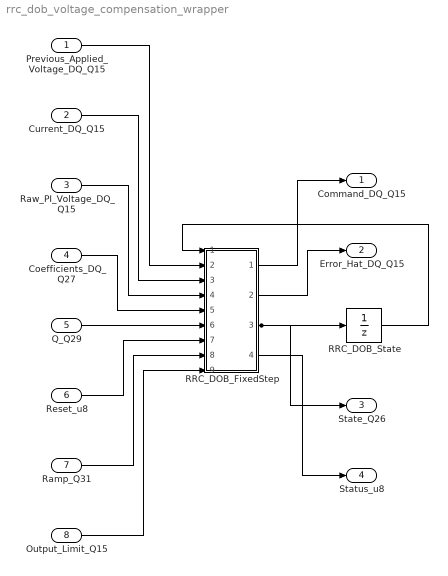
== matlab function rrc_dob_voltage_compensation_wrapper/RRC_DOB_FixedStep ==
function [commandDQ_Q15, eHatDQ_Q15, stateNext, status] = RRC_DOB_FixedStep(state, previousAppliedVoltageDQ_Q15, currentDQ_Q15, rawPiVoltageDQ_Q15, coefficientsDQ_Q27, q_Q29, reset, ramp_Q31, outputLimit_Q15)
%#codegen
[commandDQ_Q15, eHatDQ_Q15, stateNext, status] = rrcDobFixedPointStep(state, previousAppliedVoltageDQ_Q15, currentDQ_Q15, rawPiVoltageDQ_Q15, coefficientsDQ_Q27, q_Q29, reset, ramp_Q31, outputLimit_Q15);
end

/*
 * Academic License - for use in teaching, academic research, and meeting
 * course requirements at degree granting institutions only.  Not for
 * government, commercial, or other organizational use.
 *
 * File: rrc_dob_voltage_compensation_wrapper.c
 *
 * Code generated for Simulink model 'rrc_dob_voltage_compensation_wrapper'.
 *
 * Model version                  : 1.2
 * Simulink Coder version         : 26.1 (R2026a) 20-Nov-2025
 * C/C++ source code generated on : Thu Aug 27 22:31:27 2026
 *
 * Target selection: ert.tlc
 * Embedded hardware selection: ARM Compatible->ARM Cortex
 * Code generation objectives: Unspecified
 * Validation result: Not run
 */

#include "rrc_dob_voltage_compensation_wrapper.h"
#include "rtwtypes.h"
#include "multiword_types.h"
#include "rrc_dob_voltage_compensation_wrapper_private.h"

/* Block states (default storage) */
DW_rrc_dob_voltage_compensati_T rrc_dob_voltage_compensation_DW;

/* External inputs (root inport signals with default storage) */
ExtU_rrc_dob_voltage_compensa_T rrc_dob_voltage_compensation__U;

/* External outputs (root outports fed by signals with default storage) */
ExtY_rrc_dob_voltage_compensa_T rrc_dob_voltage_compensation__Y;

/* Real-time model */
static RT_MODEL_rrc_dob_voltage_comp_T rrc_dob_voltage_compensation_M_;
RT_MODEL_rrc_dob_voltage_comp_T *const rrc_dob_voltage_compensation_M =
  &rrc_dob_voltage_compensation_M_;

/* Forward declaration for local functions */
static void rrc_dob_vo_localScaleStateValue(int32_T b_value, const int64m_T
  ratio_Q30, int32_T *scaledValue, boolean_T *valid);
static void rrc_dob_voltage_localAccumulate(const int64m_T accumulator, const
  int64m_T term, int64m_T *result, boolean_T *valid);
static void rrc_dob_voltage_c_localAxisStep(const int32_T state[3], int16_T
  previousAppliedVoltage_Q15, int16_T current_Q15, const int32_T
  coefficients_Q27[19], int16_T *eHat_Q15, int32_T stateNext[3], boolean_T
  *valid);
boolean_T sMultiWordLt(const uint32_T u1[], const uint32_T u2[], int32_T n)
{
  return sMultiWordCmp(u1, u2, n) < 0;
}

int32_T sMultiWordCmp(const uint32_T u1[], const uint32_T u2[], int32_T n)
{
  int32_T y;
  uint32_T su1;
  uint32_T su2;
  su1 = u1[n - 1] & 2147483648U;
  su2 = u2[n - 1] & 2147483648U;
  if (su1 != su2) {
    y = su1 != 0U ? -1 : 1;
  } else {
    int32_T i;
    y = 0;
    i = n;
    while ((y == 0) && (i > 0)) {
      i--;
      su1 = u1[i];
      su2 = u2[i];
      if (su1 != su2) {
        y = su1 > su2 ? 1 : -1;
      }
    }
  }

  return y;
}

void sMultiWord2MultiWord(const uint32_T u1[], int32_T n1, uint32_T y[], int32_T
  n)
{
  int32_T i;
  int32_T nm;
  nm = n1 < n ? n1 : n;
  for (i = 0; i < nm; i++) {
    y[i] = u1[i];
  }

  if (n > n1) {
    uint32_T u1i;
    u1i = (u1[n1 - 1] & 2147483648U) != 0U ? MAX_uint32_T : 0U;
    for (i = nm; i < n; i++) {
      y[i] = u1i;
    }
  }
}

void sMultiWordShl(const uint32_T u1[], int32_T n1, uint32_T n2, uint32_T y[],
                   int32_T n)
{
  int32_T i;
  int32_T nb;
  int32_T nc;
  uint32_T u1i;
  uint32_T ys;
  nb = (int32_T)(n2 >> 5);
  ys = (u1[n1 - 1] & 2147483648U) != 0U ? MAX_uint32_T : 0U;
  nc = nb > n ? n : nb;
  u1i = 0U;
  for (i = 0; i < nc; i++) {
    y[i] = 0U;
  }

  if (nb < n) {
    uint32_T nl;
    nl = n2 - ((uint32_T)nb << 5);
    nb += n1;
    if (nb > n) {
      nb = n;
    }

    nb -= i;
    if (nl > 0U) {
      for (nc = 0; nc < nb; nc++) {
        uint32_T yi;
        yi = u1i >> (32U - nl);
        u1i = u1[nc];
        y[i] = u1i << nl | yi;
        i++;
      }

      if (i < n) {
        y[i] = u1i >> (32U - nl) | ys << nl;
        i++;
      }
    } else {
      for (nc = 0; nc < nb; nc++) {
        y[i] = u1[nc];
        i++;
      }
    }
  }

  while (i < n) {
    y[i] = ys;
    i++;
  }
}

void sLong2MultiWord(int32_T u, uint32_T y[], int32_T n)
{
  int32_T i;
  uint32_T yi;
  y[0] = (uint32_T)u;
  yi = u < 0 ? MAX_uint32_T : 0U;
  for (i = 1; i < n; i++) {
    y[i] = yi;
  }
}

boolean_T sMultiWordGt(const uint32_T u1[], const uint32_T u2[], int32_T n)
{
  return sMultiWordCmp(u1, u2, n) > 0;
}

void sMultiWord2sMultiWordSat(const uint32_T u1[], int32_T n1, uint32_T y[],
  int32_T n)
{
  int32_T i;
  int32_T nm1;
  uint32_T ys;
  boolean_T doSaturation = false;
  nm1 = n - 1;
  ys = (u1[n1 - 1] & 2147483648U) != 0U ? MAX_uint32_T : 0U;
  if (n1 > n) {
    doSaturation = (((u1[n1 - 1] ^ u1[n - 1]) & 2147483648U) != 0U);
    i = n1 - 1;
    while (!doSaturation && (i >= n)) {
      doSaturation = (u1[i] != ys);
      i--;
    }
  }

  if (doSaturation) {
    ys = ~ys;
    for (i = 0; i < nm1; i++) {
      y[i] = ys;
    }

    y[i] = ys ^ 2147483648U;
  } else {
    nm1 = n1 < n ? n1 : n;
    for (i = 0; i < nm1; i++) {
      y[i] = u1[i];
    }

    while (i < n) {
      y[i] = ys;
      i++;
    }
  }
}

void sMultiWordDivFloor(const uint32_T u1[], int32_T n1, const uint32_T u2[],
  int32_T n2, uint32_T y1[], int32_T m1, uint32_T y2[], int32_T m2, uint32_T t1[],
  int32_T l1, uint32_T t2[], int32_T l2)
{
  boolean_T denNeg;
  boolean_T numNeg;
  numNeg = ((u1[n1 - 1] & 2147483648U) != 0U);
  denNeg = ((u2[n2 - 1] & 2147483648U) != 0U);
  if (numNeg) {
    MultiWordNeg(u1, t1, n1);
  } else {
    sMultiWord2MultiWord(u1, n1, t1, l1);
  }

  if (denNeg) {
    MultiWordNeg(u2, t2, n2);
  } else {
    sMultiWord2MultiWord(u2, n2, t2, l2);
  }

  if (uMultiWordDiv(t1, l1, t2, l2, y1, m1, y2, m2) < 0) {
    if (numNeg) {
      MultiWordSetSignedMin(y1, m1);
    } else {
      MultiWordSetSignedMax(y1, m1);
    }
  } else if ((boolean_T)(numNeg ^ denNeg)) {
    if (MultiWord2Bool(y2, m2)) {
      uMultiWordInc(y1, m1);
    }

    MultiWordNeg(y1, y1, m1);
  }
}

void MultiWordNeg(const uint32_T u1[], uint32_T y[], int32_T n)
{
  int32_T i;
  uint32_T carry = 1U;
  for (i = 0; i < n; i++) {
    uint32_T yi;
    yi = ~u1[i] + carry;
    y[i] = yi;
    carry = (uint32_T)(yi < carry);
  }
}

void MultiWordSetSignedMin(uint32_T y[], int32_T n)
{
  int32_T i;
  int32_T n1;
  n1 = n - 1;
  for (i = 0; i < n1; i++) {
    y[i] = 0U;
  }

  y[n - 1] = 2147483648U;
}

void MultiWordSetSignedMax(uint32_T y[], int32_T n)
{
  int32_T i;
  int32_T n1;
  n1 = n - 1;
  for (i = 0; i < n1; i++) {
    y[i] = MAX_uint32_T;
  }

  y[n - 1] = 2147483647U;
}

void uMultiWordInc(uint32_T y[], int32_T n)
{
  int32_T i;
  uint32_T carry = 1U;
  for (i = 0; i < n; i++) {
    uint32_T yi;
    yi = y[i] + carry;
    y[i] = yi;
    carry = (uint32_T)(yi < carry);
  }
}

boolean_T MultiWord2Bool(const uint32_T u[], int32_T n)
{
  int32_T i;
  boolean_T y;
  y = false;
  i = 0;
  while ((i < n) && !y) {
    if (u[i] != 0U) {
      y = true;
    }

    i++;
  }

  return y;
}

int32_T uMultiWordDiv(uint32_T a[], int32_T na, uint32_T b[], int32_T nb,
                      uint32_T q[], int32_T nq, uint32_T r[], int32_T nr)
{
  int32_T ka;
  int32_T kr;
  int32_T nzb;
  int32_T tpi;
  int32_T y;
  nzb = nb;
  tpi = nb - 1;
  while ((nzb > 0) && (b[tpi] == 0U)) {
    nzb--;
    tpi--;
  }

  if (nzb > 0) {
    int32_T nza;
    nza = na;
    for (tpi = 0; tpi < nq; tpi++) {
      q[tpi] = 0U;
    }

    tpi = na - 1;
    while ((nza > 0) && (a[tpi] == 0U)) {
      nza--;
      tpi--;
    }

    if ((nza > 0) && (nza >= nzb)) {
      int32_T na1;
      int32_T nb1;
      nb1 = nzb - 1;
      na1 = nza - 1;
      for (kr = 0; kr < nr; kr++) {
        r[kr] = 0U;
      }

      /* Quick return if dividend and divisor fit into single word. */
      if (nza == 1) {
        uint32_T ak;
        uint32_T bk;
        uint32_T nbq;
        ak = a[0];
        bk = b[0];
        nbq = ak / bk;
        q[0] = nbq;
        r[0] = ak - nbq * bk;
        y = 7;
      } else {
        uint32_T kba;
        uint32_T kbb;
        uint32_T t;

        /* Remove leading zeros from both, dividend and divisor. */
        kbb = 1U;
        t = b[nzb - 1] >> 1U;
        while (t != 0U) {
          kbb++;
          t >>= 1U;
        }

        kba = 1U;
        t = a[nza - 1] >> 1U;
        while (t != 0U) {
          kba++;
          t >>= 1U;
        }

        /* Quick return if quotient is zero. */
        if ((nza > nzb) || (kba >= kbb)) {
          uint32_T ak;
          uint32_T bk;
          uint32_T mask;
          uint32_T nba;
          uint32_T nbb;
          uint32_T nbq;
          uint32_T tnb;
          nba = ((uint32_T)(nza - 1) << 5) + kba;
          nbb = ((uint32_T)(nzb - 1) << 5) + kbb;

          /* Normalize b. */
          if (kbb != 32U) {
            bk = b[nzb - 1];
            for (kr = nzb - 1; kr > 0; kr--) {
              t = bk << (32U - kbb);
              bk = b[kr - 1];
              t |= bk >> kbb;
              b[kr] = t;
            }

            b[kr] = bk << (32U - kbb);
            mask = ~((1U << (32U - kbb)) - 1U);
          } else {
            mask = MAX_uint32_T;
          }

          /* Initialize quotient to zero. */
          tnb = 0U;
          y = 0;

          /* Until exit conditions have been met, do */
          do {
            /* Normalize a */
            if (kba != 32U) {
              tnb = (tnb - kba) + 32U;
              ak = a[na1];
              for (ka = na1; ka > 0; ka--) {
                t = ak << (32U - kba);
                ak = a[ka - 1];
                t |= ak >> kba;
                a[ka] = t;
              }

              a[ka] = ak << (32U - kba);
            }

            /* Compare b against the a. */
            ak = a[na1];
            bk = b[nzb - 1];
            if (((nzb - 1 == 0 ? mask : MAX_uint32_T) & ak) == bk) {
              tpi = 0;
              ka = na1;
              kr = nzb - 1;
              while ((tpi == 0) && (kr > 0)) {
                ka--;
                ak = a[ka];
                kr--;
                bk = b[kr];
                if (((kr == 0 ? mask : MAX_uint32_T) & ak) != bk) {
                  tpi = ak > bk ? 1 : -1;
                }
              }
            } else {
              tpi = ak > bk ? 1 : -1;
            }

            /* If the remainder in a is still greater or equal to b, subtract normalized divisor from a. */
            if ((tpi >= 0) || (nba > nbb)) {
              nbq = nba - nbb;

              /* If the remainder and the divisor are equal, set remainder to zero. */
              if (tpi == 0) {
                ka = na1;
                for (kr = nzb - 1; kr > 0; kr--) {
                  a[ka] = 0U;
                  ka--;
                }

                a[ka] -= b[kr];
              } else {
                /* Otherwise, subtract the divisor from the remainder */
                if (tpi < 0) {
                  ak = a[na1];
                  kba = 31U;
                  for (ka = na1; ka > 0; ka--) {
                    t = ak << 1U;
                    ak = a[ka - 1];
                    t |= ak >> 31U;
                    a[ka] = t;
                  }

                  a[ka] = ak << 1U;
                  tnb++;
                  nbq--;
                }

                bk = 0U;
                ka = (na1 - nzb) + 1;
                for (kr = 0; kr < nzb; kr++) {
                  t = a[ka];
                  ak = (t - b[kr]) - bk;
                  bk = bk != 0U ? (uint32_T)(ak >= t) : (uint32_T)(ak > t);
                  a[ka] = ak;
                  ka++;
                }
              }

              /* Update the quotient. */
              tpi = (int32_T)(nbq >> 5);
              q[tpi] |= 1U << (nbq - ((uint32_T)tpi << 5));

              /* Remove leading zeros from the remainder and check whether the exit conditions have been met. */
              tpi = na1;
              while ((nza > 0) && (a[tpi] == 0U)) {
                nza--;
                tpi--;
              }

              if (nza >= nzb) {
                na1 = nza - 1;
                kba = 1U;
                t = a[nza - 1] >> 1U;
                while (t != 0U) {
                  kba++;
                  t >>= 1U;
                }

                nba = (((uint32_T)(nza - 1) << 5) + kba) - tnb;
                if (nba < nbb) {
                  y = 2;
                }
              } else if (nza == 0) {
                y = 1;
              } else {
                na1 = nza - 1;
                y = 4;
              }
            } else {
              y = 3;
            }
          } while (y == 0);

          /* Return the remainder. */
          if (y == 1) {
            r[0] = a[0];
          } else {
            tpi = (int32_T)(tnb >> 5);
            nbq = tnb - ((uint32_T)tpi << 5);
            if (nbq == 0U) {
              ka = tpi;
              for (kr = 0; kr <= nb1; kr++) {
                r[kr] = a[ka];
                ka++;
              }
            } else {
              ak = a[tpi];
              kr = 0;
              for (ka = tpi + 1; ka <= na1; ka++) {
                t = ak >> nbq;
                ak = a[ka];
                t |= ak << (32U - nbq);
                r[kr] = t;
                kr++;
              }

              r[kr] = ak >> nbq;
            }
          }

          /* Restore b. */
          if (kbb != 32U) {
            bk = b[0];
            for (kr = 0; kr < nb1; kr++) {
              t = bk >> (32U - kbb);
              bk = b[kr + 1];
              t |= bk << kbb;
              b[kr] = t;
            }

            b[kr] = bk >> (32U - kbb);
          }
        } else {
          for (kr = 0; kr < nr; kr++) {
            r[kr] = a[kr];
          }

          y = 6;
        }
      }
    } else {
      for (kr = 0; kr < nr; kr++) {
        r[kr] = a[kr];
      }

      y = 5;
    }
  } else {
    y = -1;
  }

  return y;
}

void MultiWordAdd(const uint32_T u1[], const uint32_T u2[], uint32_T y[],
                  int32_T n)
{
  int32_T i;
  uint32_T carry = 0U;
  for (i = 0; i < n; i++) {
    uint32_T u1i;
    uint32_T yi;
    u1i = u1[i];
    yi = (u1i + u2[i]) + carry;
    y[i] = yi;
    carry = carry != 0U ? (uint32_T)(yi <= u1i) : (uint32_T)(yi < u1i);
  }
}

void sMultiWordMul(const uint32_T u1[], int32_T n1, const uint32_T u2[], int32_T
                   n2, uint32_T y[], int32_T n)
{
  int32_T i;
  int32_T j;
  int32_T k;
  uint32_T cb;
  uint32_T cb1;
  uint32_T yk;
  boolean_T isNegative1;
  boolean_T isNegative2;
  isNegative1 = ((u1[n1 - 1] & 2147483648U) != 0U);
  isNegative2 = ((u2[n2 - 1] & 2147483648U) != 0U);
  cb1 = 1U;

  /* Initialize output to zero */
  for (k = 0; k < n; k++) {
    y[k] = 0U;
  }

  for (i = 0; i < n1; i++) {
    int32_T ni;
    uint32_T a0;
    uint32_T a1;
    uint32_T cb2;
    uint32_T u1i;
    cb = 0U;
    u1i = u1[i];
    if (isNegative1) {
      u1i = ~u1i + cb1;
      cb1 = (uint32_T)(u1i < cb1);
    }

    a1 = u1i >> 16U;
    a0 = u1i & 65535U;
    cb2 = 1U;
    ni = n - i;
    ni = n2 <= ni ? n2 : ni;
    k = i;
    for (j = 0; j < ni; j++) {
      uint32_T b1;
      uint32_T w01;
      uint32_T w10;
      u1i = u2[j];
      if (isNegative2) {
        u1i = ~u1i + cb2;
        cb2 = (uint32_T)(u1i < cb2);
      }

      b1 = u1i >> 16U;
      u1i &= 65535U;
      w10 = a1 * u1i;
      w01 = a0 * b1;
      yk = y[k] + cb;
      cb = (uint32_T)(yk < cb);
      u1i *= a0;
      yk += u1i;
      cb += (uint32_T)(yk < u1i);
      u1i = w10 << 16U;
      yk += u1i;
      cb += (uint32_T)(yk < u1i);
      u1i = w01 << 16U;
      yk += u1i;
      cb += (uint32_T)(yk < u1i);
      y[k] = yk;
      cb += w10 >> 16U;
      cb += w01 >> 16U;
      cb += a1 * b1;
      k++;
    }

    if (k < n) {
      y[k] = cb;
    }
  }

  /* Apply sign */
  if (isNegative1 != isNegative2) {
    cb = 1U;
    for (k = 0; k < n; k++) {
      yk = ~y[k] + cb;
      y[k] = yk;
      cb = (uint32_T)(yk < cb);
    }
  }
}

void uLong2MultiWord(uint32_T u, uint32_T y[], int32_T n)
{
  int32_T i;
  y[0] = u;
  for (i = 1; i < n; i++) {
    y[i] = 0U;
  }
}

boolean_T sMultiWordGe(const uint32_T u1[], const uint32_T u2[], int32_T n)
{
  return sMultiWordCmp(u1, u2, n) >= 0;
}

boolean_T sMultiWordEq(const uint32_T u1[], const uint32_T u2[], int32_T n)
{
  return sMultiWordCmp(u1, u2, n) == 0;
}

void sMultiWordShr(const uint32_T u1[], int32_T n1, uint32_T n2, uint32_T y[],
                   int32_T n)
{
  int32_T i;
  int32_T i1;
  int32_T nb;
  uint32_T ys;
  nb = (int32_T)(n2 >> 5);
  i = 0;
  ys = (u1[n1 - 1] & 2147483648U) != 0U ? MAX_uint32_T : 0U;
  if (nb < n1) {
    int32_T nc;
    uint32_T nr;
    nc = n + nb;
    if (nc > n1) {
      nc = n1;
    }

    nr = n2 - ((uint32_T)nb << 5);
    if (nr > 0U) {
      uint32_T u1i;
      uint32_T yi;
      u1i = u1[nb];
      for (i1 = nb + 1; i1 < nc; i1++) {
        yi = u1i >> nr;
        u1i = u1[i1];
        y[i] = u1i << (32U - nr) | yi;
        i++;
      }

      yi = u1i >> nr;
      u1i = nc < n1 ? u1[nc] : ys;
      y[i] = u1i << (32U - nr) | yi;
      i++;
    } else {
      for (i1 = nb; i1 < nc; i1++) {
        y[i] = u1[i1];
        i++;
      }
    }
  }

  while (i < n) {
    y[i] = ys;
    i++;
  }
}

void MultiWordSub(const uint32_T u1[], const uint32_T u2[], uint32_T y[],
                  int32_T n)
{
  int32_T i;
  uint32_T borrow = 0U;
  for (i = 0; i < n; i++) {
    uint32_T u1i;
    uint32_T yi;
    u1i = u1[i];
    yi = (u1i - u2[i]) - borrow;
    y[i] = yi;
    borrow = borrow != 0U ? (uint32_T)(yi >= u1i) : (uint32_T)(yi > u1i);
  }
}

int32_T MultiWord2sLong(const uint32_T u[])
{
  return (int32_T)u[0];
}

boolean_T sMultiWordLe(const uint32_T u1[], const uint32_T u2[], int32_T n)
{
  return sMultiWordCmp(u1, u2, n) <= 0;
}

int32_T sMultiWord2sLongSat(const uint32_T u1[], int32_T n1)
{
  uint32_T y;
  sMultiWord2sMultiWordSat(u1, n1, &y, 1);
  return (int32_T)y;
}

/* Function for MATLAB Function: '<Root>/RRC_DOB_FixedStep' */
static void rrc_dob_vo_localScaleStateValue(int32_T b_value, const int64m_T
  ratio_Q30, int32_T *scaledValue, boolean_T *valid)
{
  int128m_T tmp;
  int64m_T magnitude;
  int64m_T saturatedUnaryMinus;
  int64m_T tmp_0;
  int64m_T tmp_1;
  int64m_T tmp_2;
  int96m_T tmp_3;
  int96m_T tmp_4;
  int96m_T tmp_5;
  boolean_T roundingValid;
  static const int64m_T tmp_6 = { { 0U, 0U }/* chunks */
  };

  static const int64m_T tmp_7 = { { 3758096383U, 2147483647U }/* chunks */
  };

  static const int64m_T tmp_8 = { { 2147483647U, 0U }/* chunks */
  };

  static const int64m_T tmp_9 = { { 2147483648U, MAX_uint32_T }/* chunks */
  };

  static const int64m_T tmp_a = { { 536870912U, 0U }/* chunks */
  };

  static const int64m_T tmp_b = { { 0U, 2147483648U }/* chunks */
  };

  static const int64m_T tmp_c = { { MAX_uint32_T, 2147483647U }/* chunks */
  };

  sLong2MultiWord(b_value, &tmp_0.chunks[0U], 2);
  sMultiWordMul(&tmp_0.chunks[0U], 2, &ratio_Q30.chunks[0U], 2, &tmp.chunks[0U],
                4);
  sMultiWord2sMultiWordSat(&tmp.chunks[0U], 4, &magnitude.chunks[0U], 2);
  roundingValid = true;
  if (sMultiWordGe(&magnitude.chunks[0U], &tmp_6.chunks[0U], 2)) {
    if (sMultiWordGt(&magnitude.chunks[0U], &tmp_7.chunks[0U], 2)) {
      roundingValid = false;
      magnitude = tmp_6;
    } else {
      sMultiWord2MultiWord(&magnitude.chunks[0U], 2, &tmp_4.chunks[0U], 3);
      sMultiWord2MultiWord(&tmp_a.chunks[0U], 2, &tmp_5.chunks[0U], 3);
      MultiWordAdd(&tmp_4.chunks[0U], &tmp_5.chunks[0U], &tmp_3.chunks[0U], 3);
      sMultiWord2sMultiWordSat(&tmp_3.chunks[0U], 3, &tmp_2.chunks[0U], 2);
      sMultiWordShr(&tmp_2.chunks[0U], 2, 30U, &magnitude.chunks[0U], 2);
    }
  } else if (sMultiWordEq(&magnitude.chunks[0U], &tmp_b.chunks[0U], 2)) {
    roundingValid = false;
    magnitude = tmp_6;
  } else {
    if (sMultiWordLe(&magnitude.chunks[0U], &tmp_b.chunks[0U], 2)) {
      saturatedUnaryMinus = tmp_c;
    } else {
      MultiWordNeg(&magnitude.chunks[0U], &saturatedUnaryMinus.chunks[0U], 2);
    }

    magnitude = saturatedUnaryMinus;
    if (sMultiWordGt(&saturatedUnaryMinus.chunks[0U], &tmp_7.chunks[0U], 2)) {
      roundingValid = false;
      magnitude = tmp_6;
    } else {
      sMultiWord2MultiWord(&saturatedUnaryMinus.chunks[0U], 2, &tmp_4.chunks[0U],
                           3);
      sMultiWord2MultiWord(&tmp_a.chunks[0U], 2, &tmp_5.chunks[0U], 3);
      MultiWordAdd(&tmp_4.chunks[0U], &tmp_5.chunks[0U], &tmp_3.chunks[0U], 3);
      sMultiWord2sMultiWordSat(&tmp_3.chunks[0U], 3, &tmp_2.chunks[0U], 2);
      sMultiWordShr(&tmp_2.chunks[0U], 2, 30U, &tmp_1.chunks[0U], 2);
      MultiWordNeg(&tmp_1.chunks[0U], &magnitude.chunks[0U], 2);
    }
  }

  *valid = (roundingValid && sMultiWordLe(&magnitude.chunks[0U], &tmp_8.chunks
             [0U], 2) && sMultiWordGe(&magnitude.chunks[0U], &tmp_9.chunks[0U],
             2));
  if (*valid) {
    *scaledValue = sMultiWord2sLongSat(&magnitude.chunks[0U], 2);
  } else {
    *scaledValue = 0;
  }
}

/* Function for MATLAB Function: '<Root>/RRC_DOB_FixedStep' */
static void rrc_dob_voltage_localAccumulate(const int64m_T accumulator, const
  int64m_T term, int64m_T *result, boolean_T *valid)
{
  int64m_T tmp;
  int96m_T tmp_0;
  int96m_T tmp_1;
  int96m_T tmp_2;
  static const int64m_T tmp_3 = { { 0U, 0U }/* chunks */
  };

  static const int64m_T tmp_4 = { { MAX_uint32_T, 2147483647U }/* chunks */
  };

  static const int64m_T tmp_5 = { { 0U, 2147483648U }/* chunks */
  };

  if (sMultiWordGt(&term.chunks[0U], &tmp_3.chunks[0U], 2)) {
    sMultiWord2MultiWord(&tmp_4.chunks[0U], 2, &tmp_1.chunks[0U], 3);
    sMultiWord2MultiWord(&term.chunks[0U], 2, &tmp_2.chunks[0U], 3);
    MultiWordSub(&tmp_1.chunks[0U], &tmp_2.chunks[0U], &tmp_0.chunks[0U], 3);
    sMultiWord2sMultiWordSat(&tmp_0.chunks[0U], 3, &tmp.chunks[0U], 2);
    *valid = sMultiWordLe(&accumulator.chunks[0U], &tmp.chunks[0U], 2);
  } else {
    sMultiWord2MultiWord(&tmp_5.chunks[0U], 2, &tmp_1.chunks[0U], 3);
    sMultiWord2MultiWord(&term.chunks[0U], 2, &tmp_2.chunks[0U], 3);
    MultiWordSub(&tmp_1.chunks[0U], &tmp_2.chunks[0U], &tmp_0.chunks[0U], 3);
    sMultiWord2sMultiWordSat(&tmp_0.chunks[0U], 3, &tmp.chunks[0U], 2);
    *valid = (sMultiWordGe(&term.chunks[0U], &tmp_3.chunks[0U], 2) ||
              sMultiWordGe(&accumulator.chunks[0U], &tmp.chunks[0U], 2));
  }

  if (*valid) {
    sMultiWord2MultiWord(&accumulator.chunks[0U], 2, &tmp_1.chunks[0U], 3);
    *result = term;
    sMultiWord2MultiWord(&term.chunks[0U], 2, &tmp_2.chunks[0U], 3);
    MultiWordAdd(&tmp_1.chunks[0U], &tmp_2.chunks[0U], &tmp_0.chunks[0U], 3);
    sMultiWord2sMultiWordSat(&tmp_0.chunks[0U], 3, &result->chunks[0U], 2);
  } else {
    *result = tmp_3;
  }
}

/* Function for MATLAB Function: '<Root>/RRC_DOB_FixedStep' */
static void rrc_dob_voltage_c_localAxisStep(const int32_T state[3], int16_T
  previousAppliedVoltage_Q15, int16_T current_Q15, const int32_T
  coefficients_Q27[19], int16_T *eHat_Q15, int32_T stateNext[3], boolean_T
  *valid)
{
  int128m_T tmp_0;
  int64m_T b_outputAccumulator;
  int64m_T outputAccumulator;
  int64m_T saturatedUnaryMinus;
  int64m_T saturatedUnaryMinus_0;
  int64m_T tmp;
  int64m_T tmp_1;
  int64m_T tmp_2;
  int64m_T tmp_3;
  int64m_T tmp_4;
  int64m_T tmp_8;
  int64m_T tmp_9;
  int64m_T tmp_a;
  int64m_T tmp_b;
  int64m_T tmp_c;
  int64m_T tmp_d;
  int64m_T tmp_e;
  int64m_T tmp_f;
  int64m_T tmp_g;
  int64m_T tmp_h;
  int96m_T tmp_5;
  int96m_T tmp_6;
  int96m_T tmp_7;
  int32_T coefficientOffset;
  int32_T inputOffset;
  int32_T rowIndex;
  boolean_T j_valid;
  static const int64m_T tmp_i = { { 0U, 0U }/* chunks */
  };

  static const int64m_T b_outputAccumulator_0 = { { 4227858431U, 2147483647U }/* chunks */
  };

  static const int64m_T tmp_j = { { 2147483647U, 0U }/* chunks */
  };

  static const int64m_T b_outputAccumulator_1 = { { 2147483648U, MAX_uint32_T }/* chunks */
  };

  static const int64m_T b_outputAccumulator_2 = { { 67108864U, 0U }/* chunks */
  };

  static const int64m_T b_outputAccumulator_3 = { { 0U, 2147483648U }/* chunks */
  };

  static const int64m_T tmp_k = { { MAX_uint32_T, 2147483647U }/* chunks */
  };

  static const int64m_T tmp_l = { { MAX_uint32_T, 2147483615U }/* chunks */
  };

  static const int64m_T tmp_m = { { 32767U, 0U }/* chunks */
  };

  static const int64m_T tmp_n = { { 4294934528U, MAX_uint32_T }/* chunks */
  };

  static const int64m_T tmp_o = { { 0U, 32U }/* chunks */
  };

  int32_T exitg1;
  int32_T exitg2;
  stateNext[0] = 0;
  stateNext[1] = 0;
  stateNext[2] = 0;
  *eHat_Q15 = 0;
  rowIndex = 0;
  do {
    exitg2 = 0;
    if (rowIndex < 3) {
      coefficientOffset = rowIndex * 3;
      inputOffset = (rowIndex << 1) + 9;
      sLong2MultiWord(coefficients_Q27[coefficientOffset], &tmp_9.chunks[0U], 2);
      sLong2MultiWord(state[0], &tmp_a.chunks[0U], 2);
      sMultiWordMul(&tmp_9.chunks[0U], 2, &tmp_a.chunks[0U], 2, &tmp_0.chunks[0U],
                    4);
      sMultiWord2MultiWord(&tmp_0.chunks[0U], 4, &tmp_9.chunks[0U], 2);
      rrc_dob_voltage_localAccumulate(tmp_i, tmp_9, &outputAccumulator, valid);
      if (!*valid) {
        exitg2 = 1;
      } else {
        sLong2MultiWord(coefficients_Q27[coefficientOffset + 1], &tmp_a.chunks
                        [0U], 2);
        sLong2MultiWord(state[1], &tmp_b.chunks[0U], 2);
        sMultiWordMul(&tmp_a.chunks[0U], 2, &tmp_b.chunks[0U], 2, &tmp_0.chunks
                      [0U], 4);
        sMultiWord2MultiWord(&tmp_0.chunks[0U], 4, &tmp_a.chunks[0U], 2);
        rrc_dob_voltage_localAccumulate(outputAccumulator, tmp_a,
          &b_outputAccumulator, valid);
        if (!*valid) {
          exitg2 = 1;
        } else {
          sLong2MultiWord(coefficients_Q27[coefficientOffset + 2],
                          &tmp_b.chunks[0U], 2);
          sLong2MultiWord(state[2], &tmp_c.chunks[0U], 2);
          sMultiWordMul(&tmp_b.chunks[0U], 2, &tmp_c.chunks[0U], 2,
                        &tmp_0.chunks[0U], 4);
          sMultiWord2MultiWord(&tmp_0.chunks[0U], 4, &tmp_b.chunks[0U], 2);
          rrc_dob_voltage_localAccumulate(b_outputAccumulator, tmp_b,
            &outputAccumulator, valid);
          if (!*valid) {
            exitg2 = 1;
          } else {
            sLong2MultiWord(coefficients_Q27[inputOffset], &tmp_d.chunks[0U], 2);
            sLong2MultiWord(previousAppliedVoltage_Q15, &tmp_e.chunks[0U], 2);
            sMultiWordMul(&tmp_d.chunks[0U], 2, &tmp_e.chunks[0U], 2,
                          &tmp_0.chunks[0U], 4);
            sMultiWord2MultiWord(&tmp_0.chunks[0U], 4, &tmp_c.chunks[0U], 2);
            sMultiWordShl(&tmp_c.chunks[0U], 2, 11U, &tmp_d.chunks[0U], 2);
            rrc_dob_voltage_localAccumulate(outputAccumulator, tmp_d,
              &b_outputAccumulator, valid);
            if (!*valid) {
              exitg2 = 1;
            } else {
              sLong2MultiWord(coefficients_Q27[inputOffset + 1], &tmp_e.chunks
                              [0U], 2);
              sLong2MultiWord(current_Q15, &tmp_f.chunks[0U], 2);
              sMultiWordMul(&tmp_e.chunks[0U], 2, &tmp_f.chunks[0U], 2,
                            &tmp_0.chunks[0U], 4);
              sMultiWord2MultiWord(&tmp_0.chunks[0U], 4, &tmp_c.chunks[0U], 2);
              sMultiWordShl(&tmp_c.chunks[0U], 2, 11U, &tmp_e.chunks[0U], 2);
              rrc_dob_voltage_localAccumulate(b_outputAccumulator, tmp_e,
                &outputAccumulator, valid);
              if (!*valid) {
                exitg2 = 1;
              } else {
                j_valid = true;
                tmp_c = tmp_i;
                if (sMultiWordGe(&outputAccumulator.chunks[0U], &tmp_i.chunks[0U],
                                 2)) {
                  tmp_g = b_outputAccumulator_0;
                  if (sMultiWordGt(&outputAccumulator.chunks[0U],
                                   &b_outputAccumulator_0.chunks[0U], 2)) {
                    j_valid = false;
                    outputAccumulator = tmp_i;
                  } else {
                    sMultiWord2MultiWord(&outputAccumulator.chunks[0U], 2,
                                         &tmp_6.chunks[0U], 3);
                    sMultiWord2MultiWord(&b_outputAccumulator_2.chunks[0U], 2,
                                         &tmp_7.chunks[0U], 3);
                    MultiWordAdd(&tmp_6.chunks[0U], &tmp_7.chunks[0U],
                                 &tmp_5.chunks[0U], 3);
                    sMultiWord2sMultiWordSat(&tmp_5.chunks[0U], 3,
                      &tmp_h.chunks[0U], 2);
                    sMultiWordShr(&tmp_h.chunks[0U], 2, 27U,
                                  &outputAccumulator.chunks[0U], 2);
                  }
                } else {
                  tmp_f = b_outputAccumulator_3;
                  if (sMultiWordEq(&outputAccumulator.chunks[0U],
                                   &b_outputAccumulator_3.chunks[0U], 2)) {
                    j_valid = false;
                    outputAccumulator = tmp_i;
                  } else {
                    if (sMultiWordLe(&outputAccumulator.chunks[0U],
                                     &b_outputAccumulator_3.chunks[0U], 2)) {
                      saturatedUnaryMinus_0 = tmp_k;
                    } else {
                      MultiWordNeg(&outputAccumulator.chunks[0U],
                                   &saturatedUnaryMinus_0.chunks[0U], 2);
                    }

                    outputAccumulator = saturatedUnaryMinus_0;
                    if (sMultiWordGt(&saturatedUnaryMinus_0.chunks[0U],
                                     &b_outputAccumulator_0.chunks[0U], 2)) {
                      j_valid = false;
                      outputAccumulator = tmp_i;
                    } else {
                      sMultiWord2MultiWord(&saturatedUnaryMinus_0.chunks[0U], 2,
                                           &tmp_6.chunks[0U], 3);
                      sMultiWord2MultiWord(&b_outputAccumulator_2.chunks[0U], 2,
                                           &tmp_7.chunks[0U], 3);
                      MultiWordAdd(&tmp_6.chunks[0U], &tmp_7.chunks[0U],
                                   &tmp_5.chunks[0U], 3);
                      sMultiWord2sMultiWordSat(&tmp_5.chunks[0U], 3,
                        &tmp_h.chunks[0U], 2);
                      sMultiWordShr(&tmp_h.chunks[0U], 2, 27U, &tmp_g.chunks[0U],
                                    2);
                      MultiWordNeg(&tmp_g.chunks[0U], &outputAccumulator.chunks
                                   [0U], 2);
                    }
                  }
                }

                tmp_h = tmp_j;
                if (!j_valid || sMultiWordGt(&outputAccumulator.chunks[0U],
                     &tmp_j.chunks[0U], 2) || sMultiWordLt
                    (&outputAccumulator.chunks[0U],
                     &b_outputAccumulator_1.chunks[0U], 2)) {
                  *valid = false;
                  exitg2 = 1;
                } else {
                  stateNext[rowIndex] = MultiWord2sLong
                    (&outputAccumulator.chunks[0U]);
                  rowIndex++;
                }
              }
            }
          }
        }
      }
    } else {
      outputAccumulator = tmp_i;
      rowIndex = 0;
      exitg2 = 2;
    }
  } while (exitg2 == 0);

  if (exitg2 == 1) {
  } else {
    do {
      exitg1 = 0;
      if (rowIndex < 3) {
        sLong2MultiWord(coefficients_Q27[rowIndex + 15], &tmp_8.chunks[0U], 2);
        sLong2MultiWord(state[rowIndex], &tmp_9.chunks[0U], 2);
        sMultiWordMul(&tmp_8.chunks[0U], 2, &tmp_9.chunks[0U], 2, &tmp_0.chunks
                      [0U], 4);
        sMultiWord2MultiWord(&tmp_0.chunks[0U], 4, &tmp_8.chunks[0U], 2);
        rrc_dob_voltage_localAccumulate(outputAccumulator, tmp_8,
          &outputAccumulator, valid);
        if (!*valid) {
          exitg1 = 1;
        } else {
          rowIndex++;
        }
      } else {
        sLong2MultiWord(coefficients_Q27[18], &tmp_1.chunks[0U], 2);
        sLong2MultiWord(current_Q15, &tmp_2.chunks[0U], 2);
        sMultiWordMul(&tmp_1.chunks[0U], 2, &tmp_2.chunks[0U], 2, &tmp_0.chunks
                      [0U], 4);
        sMultiWord2MultiWord(&tmp_0.chunks[0U], 4, &tmp.chunks[0U], 2);
        sMultiWordShl(&tmp.chunks[0U], 2, 11U, &tmp_1.chunks[0U], 2);
        rrc_dob_voltage_localAccumulate(outputAccumulator, tmp_1,
          &b_outputAccumulator, valid);
        if (*valid) {
          *valid = true;
          if (sMultiWordGe(&b_outputAccumulator.chunks[0U], &tmp_i.chunks[0U], 2))
          {
            if (sMultiWordGt(&b_outputAccumulator.chunks[0U], &tmp_l.chunks[0U],
                             2)) {
              *valid = false;
              outputAccumulator = tmp_i;
            } else {
              sMultiWord2MultiWord(&b_outputAccumulator.chunks[0U], 2,
                                   &tmp_6.chunks[0U], 3);
              sMultiWord2MultiWord(&tmp_o.chunks[0U], 2, &tmp_7.chunks[0U], 3);
              MultiWordAdd(&tmp_6.chunks[0U], &tmp_7.chunks[0U], &tmp_5.chunks
                           [0U], 3);
              sMultiWord2sMultiWordSat(&tmp_5.chunks[0U], 3, &tmp_4.chunks[0U],
                2);
              sMultiWordShr(&tmp_4.chunks[0U], 2, 38U,
                            &outputAccumulator.chunks[0U], 2);
            }
          } else if (sMultiWordEq(&b_outputAccumulator.chunks[0U],
                                  &b_outputAccumulator_3.chunks[0U], 2)) {
            *valid = false;
            outputAccumulator = tmp_i;
          } else {
            if (sMultiWordLe(&b_outputAccumulator.chunks[0U],
                             &b_outputAccumulator_3.chunks[0U], 2)) {
              saturatedUnaryMinus = tmp_k;
            } else {
              MultiWordNeg(&b_outputAccumulator.chunks[0U],
                           &saturatedUnaryMinus.chunks[0U], 2);
            }

            outputAccumulator = saturatedUnaryMinus;
            if (sMultiWordGt(&saturatedUnaryMinus.chunks[0U], &tmp_l.chunks[0U],
                             2)) {
              *valid = false;
              outputAccumulator = tmp_i;
            } else {
              sMultiWord2MultiWord(&saturatedUnaryMinus.chunks[0U], 2,
                                   &tmp_6.chunks[0U], 3);
              sMultiWord2MultiWord(&tmp_o.chunks[0U], 2, &tmp_7.chunks[0U], 3);
              MultiWordAdd(&tmp_6.chunks[0U], &tmp_7.chunks[0U], &tmp_5.chunks
                           [0U], 3);
              sMultiWord2sMultiWordSat(&tmp_5.chunks[0U], 3, &tmp_4.chunks[0U],
                2);
              sMultiWordShr(&tmp_4.chunks[0U], 2, 38U, &tmp_3.chunks[0U], 2);
              MultiWordNeg(&tmp_3.chunks[0U], &outputAccumulator.chunks[0U], 2);
            }
          }

          if (!*valid || sMultiWordGt(&outputAccumulator.chunks[0U],
               &tmp_m.chunks[0U], 2) || sMultiWordLt(&outputAccumulator.chunks
               [0U], &tmp_n.chunks[0U], 2)) {
            *valid = false;
          } else {
            *eHat_Q15 = (int16_T)MultiWord2sLong(&outputAccumulator.chunks[0U]);
          }
        }

        exitg1 = 1;
      }
    } while (exitg1 == 0);
  }
}

/* Model step function */
void rrc_dob_voltage_compensation_wrapper_step(void)
{
  int128m_T tmp_c;
  int64m_T limitedCorrection;
  int64m_T lowerLimit;
  int64m_T magnitude;
  int64m_T tmp;
  int64m_T tmp_2;
  int64m_T tmp_3;
  int64m_T tmp_4;
  int64m_T tmp_5;
  int64m_T tmp_6;
  int64m_T tmp_7;
  int64m_T tmp_8;
  int64m_T tmp_9;
  int64m_T tmp_a;
  int64m_T tmp_b;
  int96m_T tmp_0;
  int96m_T tmp_1;
  int32_T rtb_RRC_DOB_State[8];
  int32_T workingState[6];
  int32_T b[3];
  int32_T i;
  boolean_T dState2SecondValid;
  boolean_T dState3Valid;
  boolean_T qState2FirstValid;
  boolean_T qState2SecondValid;
  boolean_T qState3Valid;
  boolean_T sampleSaturated;
  static const int64m_T tmp_d = { { 2U, 0U }/* chunks */
  };

  static const int64m_T tmp_e = { { 0U, 0U }/* chunks */
  };

  static const int64m_T tmp_f = { { 1073741824U, 0U }/* chunks */
  };

  static const int64m_T tmp_g = { { 32767U, 0U }/* chunks */
  };

  static const int64m_T tmp_h = { { 4294934528U, MAX_uint32_T }/* chunks */
  };

  static const int64m_T tmp_i = { { 0U, 2147483648U }/* chunks */
  };

  int32_T exitg1;
  boolean_T guard1;
  boolean_T guard11;
  boolean_T guard2;

  /* MATLAB Function: '<Root>/RRC_DOB_FixedStep' */
  rrc_dob_voltage_compensation__Y.Error_Hat_DQ_Q15[0] = 0;
  rrc_dob_voltage_compensation__Y.Error_Hat_DQ_Q15[1] = 0;
  for (i = 0; i < 8; i++) {
    /* UnitDelay: '<Root>/RRC_DOB_State' */
    rtb_RRC_DOB_State[i] =
      rrc_dob_voltage_compensation_DW.RRC_DOB_State_DSTATE[i];

    /* MATLAB Function: '<Root>/RRC_DOB_FixedStep' incorporates:
     *  UnitDelay: '<Root>/RRC_DOB_State'
     */
    rrc_dob_voltage_compensation_DW.RRC_DOB_State_DSTATE[i] = 0;
  }

  /* Outport: '<Root>/Command_DQ_Q15' incorporates:
   *  Inport: '<Root>/Raw_PI_Voltage_DQ_Q15'
   *  MATLAB Function: '<Root>/RRC_DOB_FixedStep'
   */
  rrc_dob_voltage_compensation__Y.Command_DQ_Q15[0] =
    rrc_dob_voltage_compensation__U.Raw_PI_Voltage_DQ_Q15[0];
  rrc_dob_voltage_compensation__Y.Command_DQ_Q15[1] =
    rrc_dob_voltage_compensation__U.Raw_PI_Voltage_DQ_Q15[1];

  /* MATLAB Function: '<Root>/RRC_DOB_FixedStep' incorporates:
   *  Inport: '<Root>/Coefficients_DQ_Q27'
   *  Inport: '<Root>/Current_DQ_Q15'
   *  Inport: '<Root>/Output_Limit_Q15'
   *  Inport: '<Root>/Previous_Applied_Voltage_DQ_Q15'
   *  Inport: '<Root>/Q_Q29'
   *  Inport: '<Root>/Ramp_Q31'
   *  Inport: '<Root>/Raw_PI_Voltage_DQ_Q15'
   *  Inport: '<Root>/Reset_u8'
   *  Outport: '<Root>/Command_DQ_Q15'
   *  UnitDelay: '<Root>/RRC_DOB_State'
   */
  if (rrc_dob_voltage_compensation__U.Reset_u8 != 0) {
    /* Outport: '<Root>/Status_u8' */
    rrc_dob_voltage_compensation__Y.Status_u8 = 1U;
  } else if ((rrc_dob_voltage_compensation__U.Q_Q29 <= 0) ||
             (rrc_dob_voltage_compensation__U.Output_Limit_Q15 < 0) ||
             (rrc_dob_voltage_compensation__U.Ramp_Q31 > 2147483648U)) {
    /* Outport: '<Root>/Status_u8' */
    rrc_dob_voltage_compensation__Y.Status_u8 = 2U;
  } else if ((rtb_RRC_DOB_State[7] != 0) && (rtb_RRC_DOB_State[7] != 1)) {
    /* Outport: '<Root>/Status_u8' */
    rrc_dob_voltage_compensation__Y.Status_u8 = 2U;
  } else if (rtb_RRC_DOB_State[7] == 0) {
    rrc_dob_voltage_compensation_DW.RRC_DOB_State_DSTATE[6] =
      rrc_dob_voltage_compensation__U.Q_Q29;
    rrc_dob_voltage_compensation_DW.RRC_DOB_State_DSTATE[7] = 1;

    /* Outport: '<Root>/Status_u8' incorporates:
     *  Inport: '<Root>/Q_Q29'
     *  UnitDelay: '<Root>/RRC_DOB_State'
     */
    rrc_dob_voltage_compensation__Y.Status_u8 = 7U;
  } else if (rtb_RRC_DOB_State[6] <= 0) {
    /* Outport: '<Root>/Status_u8' */
    rrc_dob_voltage_compensation__Y.Status_u8 = 2U;
  } else {
    sLong2MultiWord(rrc_dob_voltage_compensation__U.Q_Q29, &tmp_2.chunks[0U], 2);
    sMultiWord2MultiWord(&tmp_2.chunks[0U], 2, &tmp_1.chunks[0U], 3);
    sMultiWordShl(&tmp_1.chunks[0U], 3, 1U, &tmp_0.chunks[0U], 3);
    sMultiWord2MultiWord(&tmp_0.chunks[0U], 3, &tmp.chunks[0U], 2);
    sLong2MultiWord(rtb_RRC_DOB_State[6], &tmp_2.chunks[0U], 2);
    guard1 = false;
    if (sMultiWordLt(&tmp.chunks[0U], &tmp_2.chunks[0U], 2)) {
      guard1 = true;
    } else {
      sLong2MultiWord(rrc_dob_voltage_compensation__U.Q_Q29, &tmp_3.chunks[0U],
                      2);
      sLong2MultiWord(rtb_RRC_DOB_State[6], &tmp_5.chunks[0U], 2);
      sMultiWord2MultiWord(&tmp_5.chunks[0U], 2, &tmp_1.chunks[0U], 3);
      sMultiWordShl(&tmp_1.chunks[0U], 3, 1U, &tmp_0.chunks[0U], 3);
      sMultiWord2MultiWord(&tmp_0.chunks[0U], 3, &tmp_4.chunks[0U], 2);
      if (sMultiWordGt(&tmp_3.chunks[0U], &tmp_4.chunks[0U], 2)) {
        guard1 = true;
      } else {
        for (i = 0; i < 6; i++) {
          workingState[i] = rtb_RRC_DOB_State[i];
        }

        guard11 = false;
        if (rrc_dob_voltage_compensation__U.Q_Q29 != rtb_RRC_DOB_State[6]) {
          sLong2MultiWord(rrc_dob_voltage_compensation__U.Q_Q29, &tmp_7.chunks
                          [0U], 2);
          sMultiWordShl(&tmp_7.chunks[0U], 2, 30U, &tmp_6.chunks[0U], 2);
          sLong2MultiWord(rtb_RRC_DOB_State[6], &tmp_8.chunks[0U], 2);
          tmp_2 = tmp_d;
          sMultiWordDivFloor(&tmp_8.chunks[0U], 2, &tmp_d.chunks[0U], 2,
                             &tmp_1.chunks[0U], 3, &tmp_9.chunks[0U], 2,
                             &tmp_a.chunks[0U], 2, &tmp_b.chunks[0U], 2);
          sMultiWord2MultiWord(&tmp_1.chunks[0U], 3, &tmp_7.chunks[0U], 2);
          MultiWordAdd(&tmp_6.chunks[0U], &tmp_7.chunks[0U], &tmp_5.chunks[0U],
                       2);
          sLong2MultiWord(rtb_RRC_DOB_State[6], &tmp_6.chunks[0U], 2);
          sMultiWordDivFloor(&tmp_5.chunks[0U], 2, &tmp_6.chunks[0U], 2,
                             &tmp_0.chunks[0U], 3, &tmp_7.chunks[0U], 2,
                             &tmp_8.chunks[0U], 2, &tmp_2.chunks[0U], 2);
          sMultiWord2sMultiWordSat(&tmp_0.chunks[0U], 3, &magnitude.chunks[0U],
            2);
          for (i = 0; i < 6; i++) {
            workingState[i] = rtb_RRC_DOB_State[i];
          }

          rrc_dob_vo_localScaleStateValue(rtb_RRC_DOB_State[1], magnitude,
            &workingState[1], &sampleSaturated);
          rrc_dob_vo_localScaleStateValue(workingState[1], magnitude,
            &workingState[1], &dState2SecondValid);
          rrc_dob_vo_localScaleStateValue(rtb_RRC_DOB_State[2], magnitude,
            &workingState[2], &dState3Valid);
          rrc_dob_vo_localScaleStateValue(rtb_RRC_DOB_State[4], magnitude,
            &workingState[4], &qState2FirstValid);
          rrc_dob_vo_localScaleStateValue(workingState[4], magnitude,
            &workingState[4], &qState2SecondValid);
          rrc_dob_vo_localScaleStateValue(rtb_RRC_DOB_State[5], magnitude,
            &workingState[5], &qState3Valid);
          if (!sampleSaturated || !dState2SecondValid || !dState3Valid ||
              !qState2FirstValid || !qState2SecondValid || !qState3Valid) {
            /* Outport: '<Root>/Status_u8' */
            rrc_dob_voltage_compensation__Y.Status_u8 = 5U;
          } else {
            guard11 = true;
          }
        } else {
          guard11 = true;
        }

        if (guard11) {
          rrc_dob_voltage_c_localAxisStep(&workingState[0],
            rrc_dob_voltage_compensation__U.Previous_Applied_Voltage_DQ_Q15[0],
            rrc_dob_voltage_compensation__U.Current_DQ_Q15[0],
            &rrc_dob_voltage_compensation__U.Coefficients_DQ_Q27[0],
            &rrc_dob_voltage_compensation__Y.Error_Hat_DQ_Q15[0], b,
            &sampleSaturated);
          rrc_dob_voltage_compensation_DW.RRC_DOB_State_DSTATE[0] = b[0];
          rrc_dob_voltage_compensation_DW.RRC_DOB_State_DSTATE[1] = b[1];
          rrc_dob_voltage_compensation_DW.RRC_DOB_State_DSTATE[2] = b[2];
          rrc_dob_voltage_c_localAxisStep(&workingState[3],
            rrc_dob_voltage_compensation__U.Previous_Applied_Voltage_DQ_Q15[1],
            rrc_dob_voltage_compensation__U.Current_DQ_Q15[1],
            &rrc_dob_voltage_compensation__U.Coefficients_DQ_Q27[19],
            &rrc_dob_voltage_compensation__Y.Error_Hat_DQ_Q15[1], b,
            &dState2SecondValid);
          rrc_dob_voltage_compensation_DW.RRC_DOB_State_DSTATE[3] = b[0];
          rrc_dob_voltage_compensation_DW.RRC_DOB_State_DSTATE[4] = b[1];
          rrc_dob_voltage_compensation_DW.RRC_DOB_State_DSTATE[5] = b[2];
          if (!sampleSaturated || !dState2SecondValid) {
            rrc_dob_voltage_compensation__Y.Error_Hat_DQ_Q15[0] = 0;
            rrc_dob_voltage_compensation__Y.Error_Hat_DQ_Q15[1] = 0;
            for (i = 0; i < 8; i++) {
              rrc_dob_voltage_compensation_DW.RRC_DOB_State_DSTATE[i] = 0;
            }

            /* Outport: '<Root>/Status_u8' incorporates:
             *  UnitDelay: '<Root>/RRC_DOB_State'
             */
            rrc_dob_voltage_compensation__Y.Status_u8 = 5U;
          } else {
            rrc_dob_voltage_compensation_DW.RRC_DOB_State_DSTATE[6] =
              rrc_dob_voltage_compensation__U.Q_Q29;
            rrc_dob_voltage_compensation_DW.RRC_DOB_State_DSTATE[7] = 1;
            sampleSaturated = false;
            i = 0;
            do {
              exitg1 = 0;
              if (i < 2) {
                sLong2MultiWord
                  (rrc_dob_voltage_compensation__Y.Error_Hat_DQ_Q15[i],
                   &tmp_5.chunks[0U], 2);
                uLong2MultiWord(rrc_dob_voltage_compensation__U.Ramp_Q31,
                                &tmp_6.chunks[0U], 2);
                sMultiWordMul(&tmp_5.chunks[0U], 2, &tmp_6.chunks[0U], 2,
                              &tmp_c.chunks[0U], 4);
                sMultiWord2MultiWord(&tmp_c.chunks[0U], 4, &magnitude.chunks[0U],
                                     2);
                tmp_5 = tmp_e;
                guard2 = false;
                if (sMultiWordGe(&magnitude.chunks[0U], &tmp_e.chunks[0U], 2)) {
                  tmp_8 = tmp_f;
                  MultiWordAdd(&magnitude.chunks[0U], &tmp_f.chunks[0U],
                               &tmp_7.chunks[0U], 2);
                  sMultiWordShr(&tmp_7.chunks[0U], 2, 31U,
                                &limitedCorrection.chunks[0U], 2);
                  guard2 = true;
                } else {
                  tmp_6 = tmp_i;
                  if (sMultiWordEq(&magnitude.chunks[0U], &tmp_i.chunks[0U], 2))
                  {
                    /* Outport: '<Root>/Command_DQ_Q15' incorporates:
                     *  Inport: '<Root>/Raw_PI_Voltage_DQ_Q15'
                     */
                    rrc_dob_voltage_compensation__Y.Command_DQ_Q15[0] =
                      rrc_dob_voltage_compensation__U.Raw_PI_Voltage_DQ_Q15[0];
                    rrc_dob_voltage_compensation__Y.Error_Hat_DQ_Q15[0] = 0;

                    /* Outport: '<Root>/Command_DQ_Q15' incorporates:
                     *  Inport: '<Root>/Raw_PI_Voltage_DQ_Q15'
                     */
                    rrc_dob_voltage_compensation__Y.Command_DQ_Q15[1] =
                      rrc_dob_voltage_compensation__U.Raw_PI_Voltage_DQ_Q15[1];
                    rrc_dob_voltage_compensation__Y.Error_Hat_DQ_Q15[1] = 0;
                    for (i = 0; i < 8; i++) {
                      rrc_dob_voltage_compensation_DW.RRC_DOB_State_DSTATE[i] =
                        0;
                    }

                    /* Outport: '<Root>/Status_u8' incorporates:
                     *  UnitDelay: '<Root>/RRC_DOB_State'
                     */
                    rrc_dob_voltage_compensation__Y.Status_u8 = 5U;
                    exitg1 = 1;
                  } else {
                    MultiWordSub(&tmp_f.chunks[0U], &magnitude.chunks[0U],
                                 &tmp_8.chunks[0U], 2);
                    sMultiWordShr(&tmp_8.chunks[0U], 2, 31U, &tmp_7.chunks[0U],
                                  2);
                    MultiWordNeg(&tmp_7.chunks[0U], &limitedCorrection.chunks[0U],
                                 2);
                    guard2 = true;
                  }
                }

                if (guard2) {
                  sLong2MultiWord
                    (rrc_dob_voltage_compensation__U.Output_Limit_Q15,
                     &magnitude.chunks[0U], 2);
                  MultiWordNeg(&magnitude.chunks[0U], &lowerLimit.chunks[0U], 2);
                  if (sMultiWordGt(&limitedCorrection.chunks[0U],
                                   &magnitude.chunks[0U], 2)) {
                    limitedCorrection = magnitude;
                    sampleSaturated = true;
                  } else if (sMultiWordLt(&limitedCorrection.chunks[0U],
                                          &lowerLimit.chunks[0U], 2)) {
                    limitedCorrection = lowerLimit;
                    sampleSaturated = true;
                  }

                  sLong2MultiWord
                    (rrc_dob_voltage_compensation__U.Raw_PI_Voltage_DQ_Q15[i],
                     &tmp_7.chunks[0U], 2);
                  MultiWordSub(&tmp_7.chunks[0U], &limitedCorrection.chunks[0U],
                               &magnitude.chunks[0U], 2);
                  tmp_7 = tmp_g;
                  if (sMultiWordGt(&magnitude.chunks[0U], &tmp_g.chunks[0U], 2))
                  {
                    magnitude = tmp_g;
                    sampleSaturated = true;
                  } else {
                    tmp_8 = tmp_h;
                    if (sMultiWordLt(&magnitude.chunks[0U], &tmp_h.chunks[0U], 2))
                    {
                      magnitude = tmp_h;
                      sampleSaturated = true;
                    }
                  }

                  rrc_dob_voltage_compensation__Y.Command_DQ_Q15[i] = (int16_T)
                    MultiWord2sLong(&magnitude.chunks[0U]);
                  i++;
                }
              } else {
                if (sampleSaturated) {
                  /* Outport: '<Root>/Status_u8' */
                  rrc_dob_voltage_compensation__Y.Status_u8 = 6U;
                } else {
                  /* Outport: '<Root>/Status_u8' */
                  rrc_dob_voltage_compensation__Y.Status_u8 = 0U;
                }

                exitg1 = 1;
              }
            } while (exitg1 == 0);
          }
        }
      }
    }

    if (guard1) {
      rrc_dob_voltage_compensation_DW.RRC_DOB_State_DSTATE[6] =
        rrc_dob_voltage_compensation__U.Q_Q29;
      rrc_dob_voltage_compensation_DW.RRC_DOB_State_DSTATE[7] = 1;

      /* Outport: '<Root>/Status_u8' incorporates:
       *  Inport: '<Root>/Q_Q29'
       *  UnitDelay: '<Root>/RRC_DOB_State'
       */
      rrc_dob_voltage_compensation__Y.Status_u8 = 7U;
    }
  }

  /* Outport: '<Root>/State_Q26' incorporates:
   *  UnitDelay: '<Root>/RRC_DOB_State'
   */
  for (i = 0; i < 8; i++) {
    rrc_dob_voltage_compensation__Y.State_Q26[i] =
      rrc_dob_voltage_compensation_DW.RRC_DOB_State_DSTATE[i];
  }

  /* End of Outport: '<Root>/State_Q26' */
}
